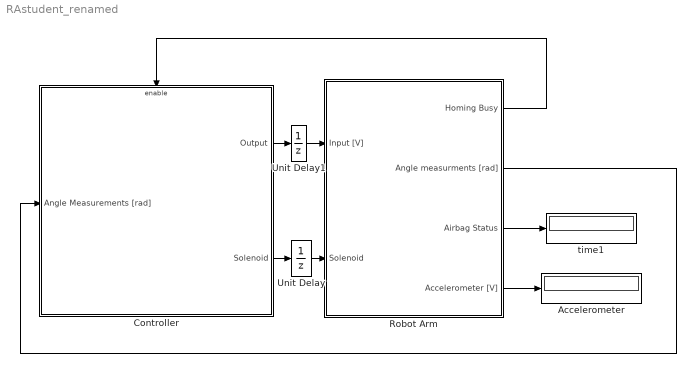
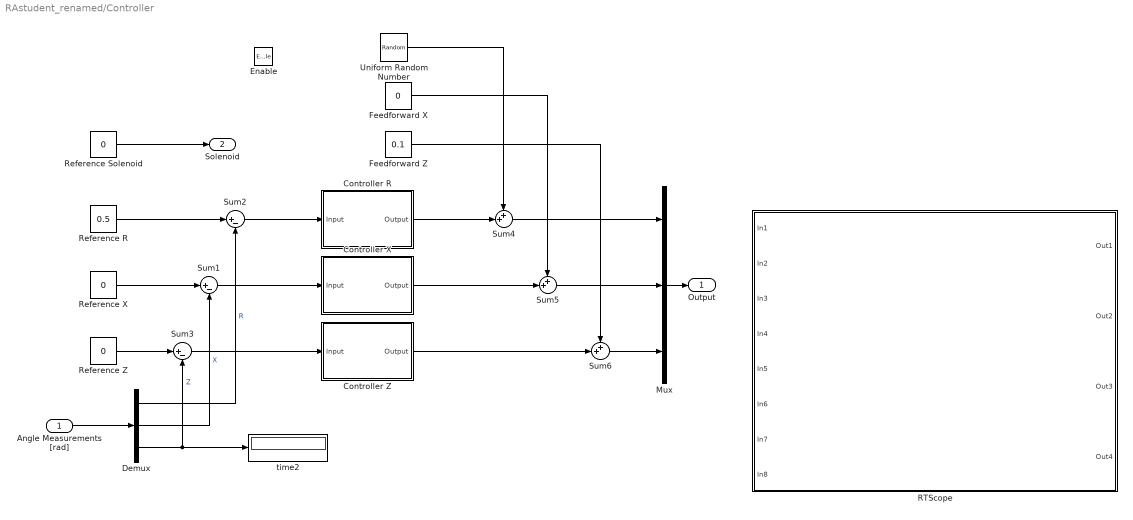
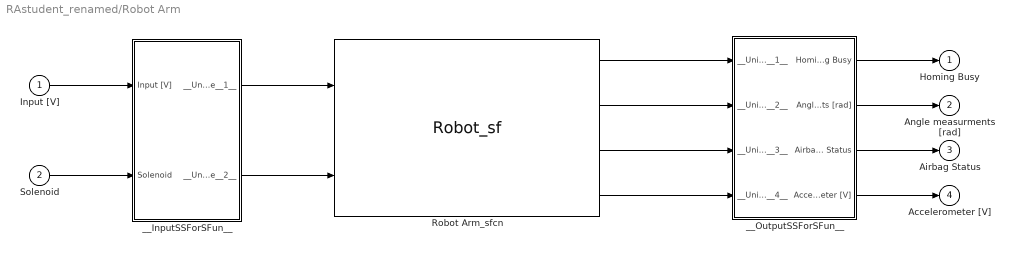
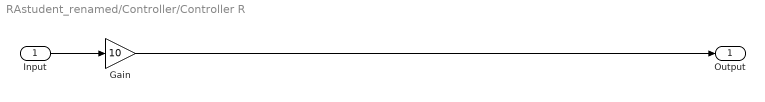
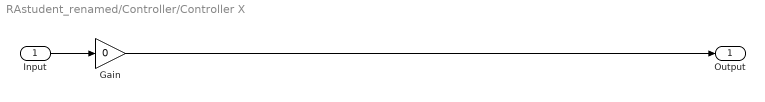
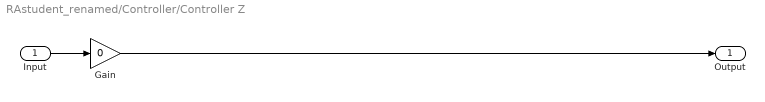
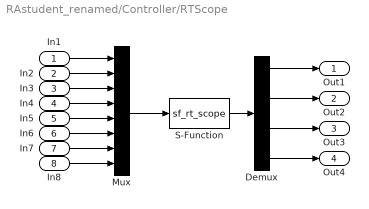
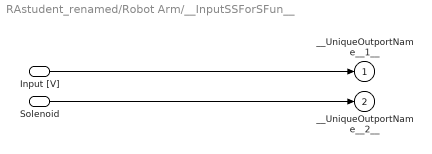
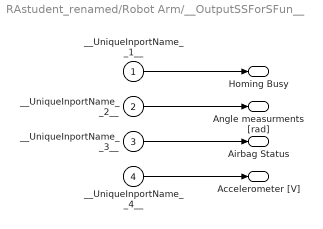
/*
 * RAstudent_renamed.c
 *
 * Academic License - for use in teaching, academic research, and meeting
 * course requirements at degree granting institutions only.  Not for
 * government, commercial, or other organizational use.
 *
 * Code generation for model "RAstudent_renamed".
 *
 * Model version              : 1.901
 * Simulink Coder version : 8.9 (R2015b) 13-Aug-2015
 * C source code generated on : Fri Apr  8 11:03:53 2016
 *
 * Target selection: ectarget.tlc
 * Note: GRT includes extra infrastructure and instrumentation for prototyping
 * Embedded hardware selection: 32-bit Generic
 * Code generation objectives: Unspecified
 * Validation result: Not run
 */

#include "RAstudent_renamed.h"
#include "RAstudent_renamed_private.h"
#include "RAstudent_renamed_dt.h"
#undef S_FUNCTION_NAME
#if !defined(RTW_GENERATED_SFCN_TUNABLE_PRMS_Robot_sf)
#define RTW_GENERATED_SFCN_TUNABLE_PRMS_Robot_sf
#endif

#include "Robot_sf.h"

const real_T RAstudent_renamed_RGND = 0.0;/* real_T ground */

/* Block signals (auto storage) */
B_RAstudent_renamed_T RAstudent_renamed_B;

/* Block states (auto storage) */
DW_RAstudent_renamed_T RAstudent_renamed_DW;

/* Real-time model */
RT_MODEL_RAstudent_renamed_T RAstudent_renamed_M_;
RT_MODEL_RAstudent_renamed_T *const RAstudent_renamed_M = &RAstudent_renamed_M_;

/* Model output function */
void RAstudent_renamed_output(void)
{
  /* Reset subsysRan breadcrumbs */
  srClearBC(RAstudent_renamed_DW.Controller_SubsysRanBC);

  /* UnitDelay: '<Root>/Unit Delay1' */
  RAstudent_renamed_B.UnitDelay1[0] = RAstudent_renamed_DW.UnitDelay1_DSTATE[0];
  RAstudent_renamed_B.UnitDelay1[1] = RAstudent_renamed_DW.UnitDelay1_DSTATE[1];
  RAstudent_renamed_B.UnitDelay1[2] = RAstudent_renamed_DW.UnitDelay1_DSTATE[2];

  /* UnitDelay: '<Root>/Unit Delay' */
  RAstudent_renamed_B.UnitDelay = RAstudent_renamed_DW.UnitDelay_DSTATE;

  /* RTW Generated Level2 S-Function Block: '<S2>/Robot Arm_sfcn' (Robot_sf) */
  {
    SimStruct *rts = RAstudent_renamed_M->childSfunctions[1];
    sfcnOutputs(rts, 0);
  }

  /* Outputs for Enabled SubSystem: '<Root>/Controller' incorporates:
   *  EnablePort: '<S1>/Enable'
   */
  if (RAstudent_renamed_B.RobotArm_sfcn_o1 > 0.0) {
    if (!RAstudent_renamed_DW.Controller_MODE) {
      RAstudent_renamed_DW.Controller_MODE = true;
    }
  } else {
    if (RAstudent_renamed_DW.Controller_MODE) {
      RAstudent_renamed_DW.Controller_MODE = false;
    }
  }

  if (RAstudent_renamed_DW.Controller_MODE) {
    /* Sum: '<S1>/Sum4' incorporates:
     *  Constant: '<S1>/Reference R'
     *  Gain: '<S3>/Gain'
     *  Sum: '<S1>/Sum2'
     */
    RAstudent_renamed_B.Sum4 = (RAstudent_renamed_P.ReferenceR_Value -
      RAstudent_renamed_B.RobotArm_sfcn_o2[0]) * RAstudent_renamed_P.Gain_Gain;

    /* Sum: '<S1>/Sum5' incorporates:
     *  Constant: '<S1>/Feedforward X'
     *  Constant: '<S1>/Reference X'
     *  Gain: '<S4>/Gain'
     *  Sum: '<S1>/Sum1'
     */
    RAstudent_renamed_B.Sum5 = (RAstudent_renamed_P.ReferenceX_Value -
      RAstudent_renamed_B.RobotArm_sfcn_o2[1]) * RAstudent_renamed_P.Gain_Gain_e
      + RAstudent_renamed_P.FeedforwardX_Value;

    /* Sum: '<S1>/Sum6' incorporates:
     *  Constant: '<S1>/Feedforward Z'
     *  Constant: '<S1>/Reference Z'
     *  Gain: '<S5>/Gain'
     *  Sum: '<S1>/Sum3'
     */
    RAstudent_renamed_B.Sum6 = (RAstudent_renamed_P.ReferenceZ_Value -
      RAstudent_renamed_B.RobotArm_sfcn_o2[2]) * RAstudent_renamed_P.Gain_Gain_l
      + RAstudent_renamed_P.FeedforwardZ_Value;

    /* Constant: '<S1>/Reference Solenoid' */
    RAstudent_renamed_B.ReferenceSolenoid =
      RAstudent_renamed_P.ReferenceSolenoid_Value;

    /* Level2 S-Function Block: '<S6>/S-Function' (sf_rt_scope) */
    {
      SimStruct *rts = RAstudent_renamed_M->childSfunctions[0];
      sfcnOutputs(rts, 0);
    }

    srUpdateBC(RAstudent_renamed_DW.Controller_SubsysRanBC);
  }

  /* End of Outputs for SubSystem: '<Root>/Controller' */
}

/* Model update function */
void RAstudent_renamed_update(void)
{
  /* Update for UnitDelay: '<Root>/Unit Delay1' */
  RAstudent_renamed_DW.UnitDelay1_DSTATE[0] = RAstudent_renamed_B.Sum4;
  RAstudent_renamed_DW.UnitDelay1_DSTATE[1] = RAstudent_renamed_B.Sum5;
  RAstudent_renamed_DW.UnitDelay1_DSTATE[2] = RAstudent_renamed_B.Sum6;

  /* Update for UnitDelay: '<Root>/Unit Delay' */
  RAstudent_renamed_DW.UnitDelay_DSTATE = RAstudent_renamed_B.ReferenceSolenoid;

  /* RTW Generated Level2 S-Function Block: '<S2>/Robot Arm_sfcn' (Robot_sf) */
  {
    SimStruct *rts = RAstudent_renamed_M->childSfunctions[1];
    sfcnUpdate(rts, 0);
    if (ssGetErrorStatus(rts) != (NULL))
      return;
  }

  /* Update absolute time for base rate */
  /* The "clockTick0" counts the number of times the code of this task has
   * been executed. The absolute time is the multiplication of "clockTick0"
   * and "Timing.stepSize0". Size of "clockTick0" ensures timer will not
   * overflow during the application lifespan selected.
   * Timer of this task consists of two 32 bit unsigned integers.
   * The two integers represent the low bits Timing.clockTick0 and the high bits
   * Timing.clockTickH0. When the low bit overflows to 0, the high bits increment.
   */
  if (!(++RAstudent_renamed_M->Timing.clockTick0)) {
    ++RAstudent_renamed_M->Timing.clockTickH0;
  }

  RAstudent_renamed_M->Timing.t[0] = RAstudent_renamed_M->Timing.clockTick0 *
    RAstudent_renamed_M->Timing.stepSize0 +
    RAstudent_renamed_M->Timing.clockTickH0 *
    RAstudent_renamed_M->Timing.stepSize0 * 4294967296.0;

  {
    /* Update absolute timer for sample time: [0.000244140625s, 0.0s] */
    /* The "clockTick1" counts the number of times the code of this task has
     * been executed. The absolute time is the multiplication of "clockTick1"
     * and "Timing.stepSize1". Size of "clockTick1" ensures timer will not
     * overflow during the application lifespan selected.
     * Timer of this task consists of two 32 bit unsigned integers.
     * The two integers represent the low bits Timing.clockTick1 and the high bits
     * Timing.clockTickH1. When the low bit overflows to 0, the high bits increment.
     */
    if (!(++RAstudent_renamed_M->Timing.clockTick1)) {
      ++RAstudent_renamed_M->Timing.clockTickH1;
    }

    RAstudent_renamed_M->Timing.t[1] = RAstudent_renamed_M->Timing.clockTick1 *
      RAstudent_renamed_M->Timing.stepSize1 +
      RAstudent_renamed_M->Timing.clockTickH1 *
      RAstudent_renamed_M->Timing.stepSize1 * 4294967296.0;
  }
}
